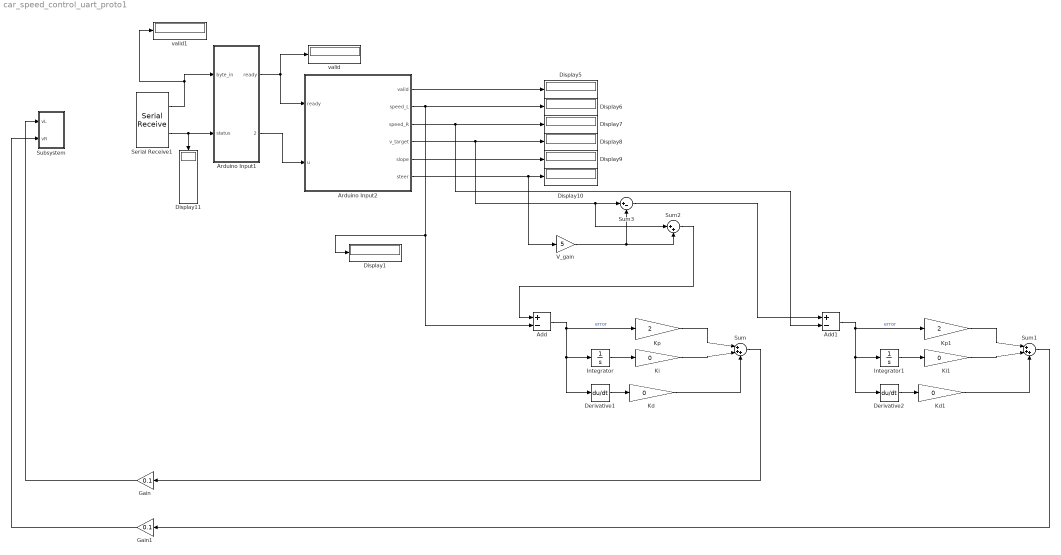
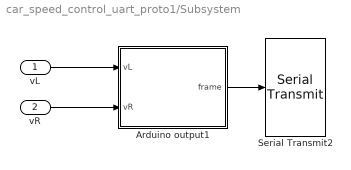
== matlab function car_speed_control_uart_proto1/Arduino Input2 ==
function [valid, speed_L, speed_R, v_target, slope, steer] = parseUART_persistent(ready, u)
% UART 패킷 파서 (persistent 방식으로 이전 값 유지)
% u: [10x1] uint8, 패킷 데이터
% ready: 패킷 유효 신호

%#codegen

% 이전 출력값 저장용 persistent 변수
persistent p_valid p_speed_L p_speed_R p_v_target p_slope p_steer

% 초기화 (최초 실행 시)
if isempty(p_valid)
    p_valid = false;
    p_speed_L = 0.0;
    p_speed_R = 0.0;
    p_v_target = 0.0;
    p_slope = uint8(0);
    p_steer = int8(0);
end

% 새로운 데이터가 들어왔을 경우만 업데이트
if ready == 1
        p_valid = true;
        p_speed_L = (double(u(2)) + double(u(3))/100) * 10;
        p_speed_R = (double(u(4)) + double(u(5))/100) * 10;
        p_v_target = double(u(6))*10;
        p_slope = u(7);
        p_steer = int8(u(8));
end

% 항상 마지막 유효 출력 반환
valid     = p_valid;
speed_L   = p_speed_L;
speed_R   = p_speed_R;
v_target  = p_v_target;
slope     = p_slope;
steer     = p_steer;

== matlab function car_speed_control_uart_proto1/Arduino Input1 ==
function [ready, data_out] = uart_parser(byte_in, status)
% UART 프레임 수신기 (Start Byte = 0xAA, Total = 10 bytes)
% 입력: byte_in - 1바이트씩 들어오는 uint8
% 입력: status - Serial Receive의 상태 (1이면 수신 성공)
% 출력: ready - 1이면 패킷 파싱 완료
% 출력: data_out - [1x10] uint8, 패킷 데이터

persistent buffer count collecting

if isempty(buffer)
    buffer = zeros(1, 10, 'uint8');
    count = 0;
    collecting = false;
end

ready = false;
data_out = zeros(1,10,'uint8');

if status == 1
    if ~collecting
        % 아직 수집 시작 전 → start byte 찾기
        if byte_in == hex2dec('AA')
            buffer(1) = byte_in;
            count = 1;
            collecting = true;
        end
    else
        % 수집 중
        count = count + 1;
        buffer(count) = byte_in;

        if count == 10
            data_out = buffer;
            ready = true;
            count = 0;
            collecting = false;
        end
    end
end

== matlab function car_speed_control_uart_proto1/Subsystem/Arduino output1 ==
function frame = makeFrame(vL, vR)
% 입력:
%   vL, vR : 좌/우 목표 속도 (실수, cm/s 단위)
% 출력:
%   frame : 7-byte UART 전송 프레임 (uint8 벡터)
    frame = zeros(5,1,'uint8');  % 7바이트 프레임

    % 2-3. 목표속도_L (정수 + 소수)
    frame(1) = uint8(floor(vL));                       % 정수부
    frame(2) = uint8(floor(mod(vL * 100, 100)));       % 소수부 (소수점 둘째 자리까지)

    % 4-5. 목표속도_R (정수 + 소수)
    frame(3) = uint8(floor(vR));                       % 정수부
    frame(4) = uint8(floor(mod(vR * 100, 100)));       % 소수부

    % 6. CRC: 256 - (sum of byte 1~5) % 256
    crc = mod(sum(double(frame(1:5))), 256);
    frame(5) = uint8(mod(256 - crc, 256));
    
end

/*
 * Academic License - for use in teaching, academic research, and meeting
 * course requirements at degree granting institutions only.  Not for
 * government, commercial, or other organizational use.
 *
 * File: car_speed_control_uart_proto1.c
 *
 * Code generated for Simulink model 'car_speed_control_uart_proto1'.
 *
 * Model version                  : 1.51
 * Simulink Coder version         : 24.2 (R2024b) 21-Jun-2024
 * C/C++ source code generated on : Fri May 23 17:59:32 2025
 *
 * Target selection: ert.tlc
 * Embedded hardware selection: Atmel->AVR
 * Code generation objectives: Unspecified
 * Validation result: Not run
 */

#include "car_speed_control_uart_proto1.h"
#include "rtwtypes.h"
#include <stddef.h>
#include <math.h>
#include "car_speed_control_uart_proto1_private.h"
#include "rt_nonfinite.h"

/* Block signals (default storage) */
B_car_speed_control_uart_prot_T car_speed_control_uart_proto1_B;

/* Continuous states */
X_car_speed_control_uart_prot_T car_speed_control_uart_proto1_X;

/* Disabled State Vector */
XDis_car_speed_control_uart_p_T car_speed_control_uart_pro_XDis;

/* Block states (default storage) */
DW_car_speed_control_uart_pro_T car_speed_control_uart_proto_DW;

/* Real-time model */
static RT_MODEL_car_speed_control_ua_T car_speed_control_uart_proto_M_;
RT_MODEL_car_speed_control_ua_T *const car_speed_control_uart_proto_M =
  &car_speed_control_uart_proto_M_;

/* Forward declaration for local functions */
static real_T car_speed_control_uart_prot_mod(real_T x);
static real_T car_speed_control_uart_pr_mod_p(real_T x);
static void rate_monotonic_scheduler(void);

/*
 * Set which subrates need to run this base step (base rate always runs).
 * This function must be called prior to calling the model step function
 * in order to remember which rates need to run this base step.  The
 * buffering of events allows for overlapping preemption.
 */
void car_speed_control_uart_proto1_SetEventsForThisBaseStep(boolean_T
  *eventFlags)
{
  /* Task runs when its counter is zero, computed via rtmStepTask macro */
  eventFlags[2] = ((boolean_T)rtmStepTask(car_speed_control_uart_proto_M, 2));
}

/*
 *         This function updates active task flag for each subrate
 *         and rate transition flags for tasks that exchange data.
 *         The function assumes rate-monotonic multitasking scheduler.
 *         The function must be called at model base rate so that
 *         the generated code self-manages all its subrates and rate
 *         transition flags.
 */
static void rate_monotonic_scheduler(void)
{
  /* To ensure a deterministic data transfer between two rates,
   * data is transferred at the priority of a fast task and the frequency
   * of the slow task.  The following flags indicate when the data transfer
   * happens.  That is, a rate interaction flag is set true when both rates
   * will run, and false otherwise.
   */

  /* tid 1 shares data with slower tid rate: 2 */
  if (car_speed_control_uart_proto_M->Timing.TaskCounters.TID[1] == 0) {
    car_speed_control_uart_proto_M->Timing.RateInteraction.TID1_2 =
      (car_speed_control_uart_proto_M->Timing.TaskCounters.TID[2] == 0);
  }

  /* Compute which subrates run during the next base time step.  Subrates
   * are an integer multiple of the base rate counter.  Therefore, the subtask
   * counter is reset when it reaches its limit (zero means run).
   */
  (car_speed_control_uart_proto_M->Timing.TaskCounters.TID[2])++;
  if ((car_speed_control_uart_proto_M->Timing.TaskCounters.TID[2]) > 9) {/* Sample time: [0.1s, 0.0s] */
    car_speed_control_uart_proto_M->Timing.TaskCounters.TID[2] = 0;
  }
}

/*
 * This function updates continuous states using the ODE3 fixed-step
 * solver algorithm
 */
static void rt_ertODEUpdateContinuousStates(RTWSolverInfo *si )
{
  /* Solver Matrices */
  static const real_T rt_ODE3_A[3] = {
    1.0/2.0, 3.0/4.0, 1.0
  };

  static const real_T rt_ODE3_B[3][3] = {
    { 1.0/2.0, 0.0, 0.0 },

    { 0.0, 3.0/4.0, 0.0 },

    { 2.0/9.0, 1.0/3.0, 4.0/9.0 }
  };

  time_T t = rtsiGetT(si);
  time_T tnew = rtsiGetSolverStopTime(si);
  time_T h = rtsiGetStepSize(si);
  real_T *x = rtsiGetContStates(si);
  ODE3_IntgData *id = (ODE3_IntgData *)rtsiGetSolverData(si);
  real_T *y = id->y;
  real_T *f0 = id->f[0];
  real_T *f1 = id->f[1];
  real_T *f2 = id->f[2];
  real_T hB[3];
  int_T i;
  int_T nXc = 2;
  rtsiSetSimTimeStep(si,MINOR_TIME_STEP);

  /* Save the state values at time t in y, we'll use x as ynew. */
  (void) memcpy(y, x,
                (uint_T)nXc*sizeof(real_T));

  /* Assumes that rtsiSetT and ModelOutputs are up-to-date */
  /* f0 = f(t,y) */
  rtsiSetdX(si, f0);
  car_speed_control_uart_proto1_derivatives();

  /* f(:,2) = feval(odefile, t + hA(1), y + f*hB(:,1), args(:)(*)); */
  hB[0] = h * rt_ODE3_B[0][0];
  for (i = 0; i < nXc; i++) {
    x[i] = y[i] + (f0[i]*hB[0]);
  }

  rtsiSetT(si, t + h*rt_ODE3_A[0]);
  rtsiSetdX(si, f1);
  car_speed_control_uart_proto1_step0();
  car_speed_control_uart_proto1_derivatives();

  /* f(:,3) = feval(odefile, t + hA(2), y + f*hB(:,2), args(:)(*)); */
  for (i = 0; i <= 1; i++) {
    hB[i] = h * rt_ODE3_B[1][i];
  }

  for (i = 0; i < nXc; i++) {
    x[i] = y[i] + (f0[i]*hB[0] + f1[i]*hB[1]);
  }

  rtsiSetT(si, t + h*rt_ODE3_A[1]);
  rtsiSetdX(si, f2);
  car_speed_control_uart_proto1_step0();
  car_speed_control_uart_proto1_derivatives();

  /* tnew = t + hA(3);
     ynew = y + f*hB(:,3); */
  for (i = 0; i <= 2; i++) {
    hB[i] = h * rt_ODE3_B[2][i];
  }

  for (i = 0; i < nXc; i++) {
    x[i] = y[i] + (f0[i]*hB[0] + f1[i]*hB[1] + f2[i]*hB[2]);
  }

  rtsiSetT(si, tnew);
  rtsiSetSimTimeStep(si,MAJOR_TIME_STEP);
}

/* Function for MATLAB Function: '<S3>/Arduino output1' */
static real_T car_speed_control_uart_prot_mod(real_T x)
{
  real_T r;
  if (rtIsNaN(x)) {
    r = (rtNaN);
  } else if (rtIsInf(x)) {
    r = (rtNaN);
  } else if (x == 0.0) {
    r = 0.0;
  } else {
    r = fmod(x, 100.0);
    if (r == 0.0) {
      r = 0.0;
    } else if (r < 0.0) {
      r += 100.0;
    }
  }

  return r;
}

/* Function for MATLAB Function: '<S3>/Arduino output1' */
static real_T car_speed_control_uart_pr_mod_p(real_T x)
{
  real_T r;
  if (rtIsNaN(x)) {
    r = (rtNaN);
  } else if (rtIsInf(x)) {
    r = (rtNaN);
  } else if (x == 0.0) {
    r = 0.0;
  } else {
    r = fmod(x, 256.0);
    if (r == 0.0) {
      r = 0.0;
    } else if (r < 0.0) {
      r += 256.0;
    }
  }

  return r;
}

real_T rt_roundd_snf(real_T u)
{
  real_T y;
  if (fabs(u) < 4.503599627370496E+15) {
    if (u >= 0.5) {
      y = floor(u + 0.5);
    } else if (u > -0.5) {
      y = u * 0.0;
    } else {
      y = ceil(u - 0.5);
    }
  } else {
    y = u;
  }

  return y;
}

/* Model step function for TID0 */
void car_speed_control_uart_proto1_step0(void) /* Sample time: [0.0s, 0.0s] */
{
  if (rtmIsMajorTimeStep(car_speed_control_uart_proto_M)) {
    /* set solver stop time */
    rtsiSetSolverStopTime(&car_speed_control_uart_proto_M->solverInfo,
                          ((car_speed_control_uart_proto_M->Timing.clockTick0+1)*
      car_speed_control_uart_proto_M->Timing.stepSize0));

    {                                  /* Sample time: [0.0s, 0.0s] */
      rate_monotonic_scheduler();
    }
  }                                    /* end MajorTimeStep */

  /* Update absolute time of base rate at minor time step */
  if (rtmIsMinorTimeStep(car_speed_control_uart_proto_M)) {
    car_speed_control_uart_proto_M->Timing.t[0] = rtsiGetT
      (&car_speed_control_uart_proto_M->solverInfo);
  }

  {
    real_T rtb_Integrator1;
    real_T tmp;
    real_T *lastU;
    int16_T i;
    uint8_T data_out[10];
    uint8_T tmp_1;
    boolean_T tmp_0;
    tmp_0 = rtmIsMajorTimeStep(car_speed_control_uart_proto_M);
    if (tmp_0) {
      /* MATLABSystem: '<Root>/Serial Receive1' */
      MW_Serial_read(1, 1U, &car_speed_control_uart_proto1_B.SerialReceive1_o1,
                     &car_speed_control_uart_proto1_B.SerialReceive1_o2, NULL,
                     0.0, NULL, 0.0);

      /* MATLAB Function: '<Root>/Arduino Input1' */
      car_speed_control_uart_proto1_B.ready = false;
      for (i = 0; i < 10; i++) {
        data_out[i] = 0U;
      }

      if (car_speed_control_uart_proto1_B.SerialReceive1_o2 == 1) {
        if (!car_speed_control_uart_proto_DW.collecting) {
          if (car_speed_control_uart_proto1_B.SerialReceive1_o1 == 170) {
            car_speed_control_uart_proto_DW.buffer[0] =
              car_speed_control_uart_proto1_B.SerialReceive1_o1;
            car_speed_control_uart_proto_DW.count = 1.0;
            car_speed_control_uart_proto_DW.collecting = true;
          }
        } else {
          car_speed_control_uart_proto_DW.count++;
          car_speed_control_uart_proto_DW.buffer[(int16_T)
            car_speed_control_uart_proto_DW.count - 1] =
            car_speed_control_uart_proto1_B.SerialReceive1_o1;
          if (car_speed_control_uart_proto_DW.count == 10.0) {
            for (i = 0; i < 10; i++) {
              data_out[i] = car_speed_control_uart_proto_DW.buffer[i];
            }

            car_speed_control_uart_proto1_B.ready = true;
            car_speed_control_uart_proto_DW.count = 0.0;
            car_speed_control_uart_proto_DW.collecting = false;
          }
        }
      }

      /* End of MATLAB Function: '<Root>/Arduino Input1' */

      /* MATLAB Function: '<Root>/Arduino Input2' */
      if (car_speed_control_uart_proto1_B.ready) {
        car_speed_control_uart_proto_DW.p_valid = true;
        car_speed_control_uart_proto_DW.p_speed_L = ((real_T)data_out[2] / 100.0
          + (real_T)data_out[1]) * 10.0;
        car_speed_control_uart_proto_DW.p_speed_R = ((real_T)data_out[4] / 100.0
          + (real_T)data_out[3]) * 10.0;
        car_speed_control_uart_proto_DW.p_v_target = (real_T)data_out[5] * 10.0;
        car_speed_control_uart_proto_DW.p_slope = data_out[6];
        tmp_1 = data_out[7];
        if (data_out[7] > 127) {
          tmp_1 = 127U;
        }

        car_speed_control_uart_proto_DW.p_steer = (int8_T)tmp_1;
      }

      car_speed_control_uart_proto1_B.valid =
        car_speed_control_uart_proto_DW.p_valid;
      car_speed_control_uart_proto1_B.speed_L =
        car_speed_control_uart_proto_DW.p_speed_L;
      car_speed_control_uart_proto1_B.speed_R =
        car_speed_control_uart_proto_DW.p_speed_R;
      car_speed_control_uart_proto1_B.v_target =
        car_speed_control_uart_proto_DW.p_v_target;
      car_speed_control_uart_proto1_B.slope =
        car_speed_control_uart_proto_DW.p_slope;
      car_speed_control_uart_proto1_B.steer =
        car_speed_control_uart_proto_DW.p_steer;

      /* End of MATLAB Function: '<Root>/Arduino Input2' */
      /* Gain: '<Root>/V_gain' */
      i = car_speed_control_uart_proto1_P.V_gain_Gain *
        car_speed_control_uart_proto1_B.steer;

      /* Sum: '<Root>/Add' incorporates:
       *  Gain: '<Root>/V_gain'
       *  Sum: '<Root>/Sum2'
       */
      car_speed_control_uart_proto1_B.error = ((real_T)i * 0.0625 +
        car_speed_control_uart_proto1_B.v_target) -
        car_speed_control_uart_proto1_B.speed_L;
    }

    /* Derivative: '<Root>/Derivative1' incorporates:
     *  Derivative: '<Root>/Derivative2'
     */
    tmp = car_speed_control_uart_proto_M->Timing.t[0];
    if ((car_speed_control_uart_proto_DW.TimeStampA >= tmp) &&
        (car_speed_control_uart_proto_DW.TimeStampB >= tmp)) {
      rtb_Integrator1 = 0.0;
    } else {
      rtb_Integrator1 = car_speed_control_uart_proto_DW.TimeStampA;
      lastU = &car_speed_control_uart_proto_DW.LastUAtTimeA;
      if (car_speed_control_uart_proto_DW.TimeStampA <
          car_speed_control_uart_proto_DW.TimeStampB) {
        if (car_speed_control_uart_proto_DW.TimeStampB < tmp) {
          rtb_Integrator1 = car_speed_control_uart_proto_DW.TimeStampB;
          lastU = &car_speed_control_uart_proto_DW.LastUAtTimeB;
        }
      } else if (car_speed_control_uart_proto_DW.TimeStampA >= tmp) {
        rtb_Integrator1 = car_speed_control_uart_proto_DW.TimeStampB;
        lastU = &car_speed_control_uart_proto_DW.LastUAtTimeB;
      }

      rtb_Integrator1 = (car_speed_control_uart_proto1_B.error - *lastU) / (tmp
        - rtb_Integrator1);
    }

    /* End of Derivative: '<Root>/Derivative1' */

    /* RateTransition generated from: '<Root>/Subsystem' incorporates:
     *  Gain: '<Root>/Gain'
     *  Gain: '<Root>/Kd'
     *  Gain: '<Root>/Ki'
     *  Gain: '<Root>/Kp'
     *  Integrator: '<Root>/Integrator'
     *  Sum: '<Root>/Sum'
     */
    if (tmp_0) {
      if (car_speed_control_uart_proto_M->Timing.RateInteraction.TID1_2) {
        car_speed_control_uart_proto_DW.TmpRTBAtSubsystemInport1_Buffer =
          ((car_speed_control_uart_proto1_P.Kp_Gain *
            car_speed_control_uart_proto1_B.error +
            car_speed_control_uart_proto1_P.Ki_Gain *
            car_speed_control_uart_proto1_X.Integrator_CSTATE) +
           car_speed_control_uart_proto1_P.Kd_Gain * rtb_Integrator1) *
          car_speed_control_uart_proto1_P.Gain_Gain;
      }

      /* Sum: '<Root>/Add1' incorporates:
       *  Gain: '<Root>/Gain'
       *  Gain: '<Root>/Kd'
       *  Gain: '<Root>/Ki'
       *  Gain: '<Root>/Kp'
       *  Gain: '<Root>/V_gain'
       *  Integrator: '<Root>/Integrator'
       *  Sum: '<Root>/Sum'
       *  Sum: '<Root>/Sum3'
       */
      car_speed_control_uart_proto1_B.error_j =
        (car_speed_control_uart_proto1_B.v_target - (real_T)i * 0.0625) -
        car_speed_control_uart_proto1_B.speed_R;
    }

    /* End of RateTransition generated from: '<Root>/Subsystem' */

    /* Derivative: '<Root>/Derivative2' */
    if ((car_speed_control_uart_proto_DW.TimeStampA_l >= tmp) &&
        (car_speed_control_uart_proto_DW.TimeStampB_i >= tmp)) {
      rtb_Integrator1 = 0.0;
    } else {
      rtb_Integrator1 = car_speed_control_uart_proto_DW.TimeStampA_l;
      lastU = &car_speed_control_uart_proto_DW.LastUAtTimeA_k;
      if (car_speed_control_uart_proto_DW.TimeStampA_l <
          car_speed_control_uart_proto_DW.TimeStampB_i) {
        if (car_speed_control_uart_proto_DW.TimeStampB_i < tmp) {
          rtb_Integrator1 = car_speed_control_uart_proto_DW.TimeStampB_i;
          lastU = &car_speed_control_uart_proto_DW.LastUAtTimeB_o;
        }
      } else if (car_speed_control_uart_proto_DW.TimeStampA_l >= tmp) {
        rtb_Integrator1 = car_speed_control_uart_proto_DW.TimeStampB_i;
        lastU = &car_speed_control_uart_proto_DW.LastUAtTimeB_o;
      }

      rtb_Integrator1 = (car_speed_control_uart_proto1_B.error_j - *lastU) /
        (tmp - rtb_Integrator1);
    }

    /* RateTransition generated from: '<Root>/Subsystem' incorporates:
     *  Gain: '<Root>/Gain1'
     *  Gain: '<Root>/Kd1'
     *  Gain: '<Root>/Ki1'
     *  Gain: '<Root>/Kp1'
     *  Integrator: '<Root>/Integrator1'
     *  Sum: '<Root>/Sum1'
     */
    if (tmp_0) {
      if (car_speed_control_uart_proto_M->Timing.RateInteraction.TID1_2) {
        car_speed_control_uart_proto_DW.TmpRTBAtSubsystemInport2_Buffer =
          ((car_speed_control_uart_proto1_P.Kp1_Gain *
            car_speed_control_uart_proto1_B.error_j +
            car_speed_control_uart_proto1_P.Ki1_Gain *
            car_speed_control_uart_proto1_X.Integrator1_CSTATE) +
           car_speed_control_uart_proto1_P.Kd1_Gain * rtb_Integrator1) *
          car_speed_control_uart_proto1_P.Gain1_Gain;
      }
    }

    /* End of RateTransition generated from: '<Root>/Subsystem' */
  }

  if (rtmIsMajorTimeStep(car_speed_control_uart_proto_M)) {
    real_T *lastU;

    /* Update for Derivative: '<Root>/Derivative1' */
    if (car_speed_control_uart_proto_DW.TimeStampA == (rtInf)) {
      car_speed_control_uart_proto_DW.TimeStampA =
        car_speed_control_uart_proto_M->Timing.t[0];
      lastU = &car_speed_control_uart_proto_DW.LastUAtTimeA;
    } else if (car_speed_control_uart_proto_DW.TimeStampB == (rtInf)) {
      car_speed_control_uart_proto_DW.TimeStampB =
        car_speed_control_uart_proto_M->Timing.t[0];
      lastU = &car_speed_control_uart_proto_DW.LastUAtTimeB;
    } else if (car_speed_control_uart_proto_DW.TimeStampA <
               car_speed_control_uart_proto_DW.TimeStampB) {
      car_speed_control_uart_proto_DW.TimeStampA =
        car_speed_control_uart_proto_M->Timing.t[0];
      lastU = &car_speed_control_uart_proto_DW.LastUAtTimeA;
    } else {
      car_speed_control_uart_proto_DW.TimeStampB =
        car_speed_control_uart_proto_M->Timing.t[0];
      lastU = &car_speed_control_uart_proto_DW.LastUAtTimeB;
    }

    *lastU = car_speed_control_uart_proto1_B.error;

    /* End of Update for Derivative: '<Root>/Derivative1' */

    /* Update for Derivative: '<Root>/Derivative2' */
    if (car_speed_control_uart_proto_DW.TimeStampA_l == (rtInf)) {
      car_speed_control_uart_proto_DW.TimeStampA_l =
        car_speed_control_uart_proto_M->Timing.t[0];
      lastU = &car_speed_control_uart_proto_DW.LastUAtTimeA_k;
    } else if (car_speed_control_uart_proto_DW.TimeStampB_i == (rtInf)) {
      car_speed_control_uart_proto_DW.TimeStampB_i =
        car_speed_control_uart_proto_M->Timing.t[0];
      lastU = &car_speed_control_uart_proto_DW.LastUAtTimeB_o;
    } else if (car_speed_control_uart_proto_DW.TimeStampA_l <
               car_speed_control_uart_proto_DW.TimeStampB_i) {
      car_speed_control_uart_proto_DW.TimeStampA_l =
        car_speed_control_uart_proto_M->Timing.t[0];
      lastU = &car_speed_control_uart_proto_DW.LastUAtTimeA_k;
    } else {
      car_speed_control_uart_proto_DW.TimeStampB_i =
        car_speed_control_uart_proto_M->Timing.t[0];
      lastU = &car_speed_control_uart_proto_DW.LastUAtTimeB_o;
    }

    *lastU = car_speed_control_uart_proto1_B.error_j;

    /* End of Update for Derivative: '<Root>/Derivative2' */
    {
      extmodeErrorCode_T returnCode = EXTMODE_SUCCESS;
      extmodeSimulationTime_T extmodeTime = (extmodeSimulationTime_T)
        ((car_speed_control_uart_proto_M->Timing.clockTick1 * 1) + 0);

      /* Trigger External Mode event */
      returnCode = extmodeEvent(1, extmodeTime);
      if (returnCode != EXTMODE_SUCCESS) {
        /* Code to handle External Mode event errors
           may be added here */
      }
    }
  }                                    /* end MajorTimeStep */

  if (rtmIsMajorTimeStep(car_speed_control_uart_proto_M)) {
    rt_ertODEUpdateContinuousStates(&car_speed_control_uart_proto_M->solverInfo);

    /* Update absolute time */
    /* The "clockTick0" counts the number of times the code of this task has
     * been executed. The absolute time is the multiplication of "clockTick0"
     * and "Timing.stepSize0". Size of "clockTick0" ensures timer will not
     * overflow during the application lifespan selected.
     */
    ++car_speed_control_uart_proto_M->Timing.clockTick0;
    car_speed_control_uart_proto_M->Timing.t[0] = rtsiGetSolverStopTime
      (&car_speed_control_uart_proto_M->solverInfo);

    /* Update absolute time */
    /* The "clockTick1" counts the number of times the code of this task has
     * been executed. The resolution of this integer timer is 0.01, which is the step size
     * of the task. Size of "clockTick1" ensures timer will not overflow during the
     * application lifespan selected.
     */
    car_speed_control_uart_proto_M->Timing.clockTick1++;
  }                                    /* end MajorTimeStep */
}

/* Derivatives for root system: '<Root>' */
void car_speed_control_uart_proto1_derivatives(void)
{
  XDot_car_speed_control_uart_p_T *_rtXdot;
  _rtXdot = ((XDot_car_speed_control_uart_p_T *)
             car_speed_control_uart_proto_M->derivs);

  /* Derivatives for Integrator: '<Root>/Integrator' */
  _rtXdot->Integrator_CSTATE = car_speed_control_uart_proto1_B.error;

  /* Derivatives for Integrator: '<Root>/Integrator1' */
  _rtXdot->Integrator1_CSTATE = car_speed_control_uart_proto1_B.error_j;
}

/* Model step function for TID2 */
void car_speed_control_uart_proto1_step2(void) /* Sample time: [0.1s, 0.0s] */
{
  real_T tmp;
  real_T tmp_0;
  real_T tmp_1;
  uint8_T frame[5];
  uint8_T varargin_10;
  uint8_T varargin_9;

  /* Outputs for Atomic SubSystem: '<Root>/Subsystem' */
  /* MATLAB Function: '<S3>/Arduino output1' incorporates:
   *  RateTransition generated from: '<Root>/Subsystem'
   * */
  tmp_1 = floor(car_speed_control_uart_proto_DW.TmpRTBAtSubsystemInport1_Buffer);
  if (tmp_1 < 256.0) {
    if (tmp_1 >= 0.0) {
      frame[0] = (uint8_T)tmp_1;
    } else {
      frame[0] = 0U;
    }
  } else {
    frame[0] = MAX_uint8_T;
  }

  tmp_0 = floor(car_speed_control_uart_prot_mod
                (car_speed_control_uart_proto_DW.TmpRTBAtSubsystemInport1_Buffer
                 * 100.0));
  if (tmp_0 < 256.0) {
    if (tmp_0 >= 0.0) {
      frame[1] = (uint8_T)tmp_0;
    } else {
      frame[1] = 0U;
    }
  } else {
    frame[1] = MAX_uint8_T;
  }

  tmp_0 = floor(car_speed_control_uart_proto_DW.TmpRTBAtSubsystemInport2_Buffer);
  if (tmp_0 < 256.0) {
    if (tmp_0 >= 0.0) {
      frame[2] = (uint8_T)tmp_0;
    } else {
      frame[2] = 0U;
    }
  } else {
    frame[2] = MAX_uint8_T;
  }

  tmp = floor(car_speed_control_uart_prot_mod
              (car_speed_control_uart_proto_DW.TmpRTBAtSubsystemInport2_Buffer *
               100.0));
  if (tmp < 256.0) {
    if (tmp >= 0.0) {
      frame[3] = (uint8_T)tmp;
    } else {
      frame[3] = 0U;
    }
  } else {
    frame[3] = MAX_uint8_T;
  }

  if (tmp_1 < 256.0) {
    if (tmp_1 >= 0.0) {
      varargin_9 = (uint8_T)tmp_1;
    } else {
      varargin_9 = 0U;
    }
  } else {
    varargin_9 = MAX_uint8_T;
  }

  if (tmp_0 < 256.0) {
    if (tmp_0 >= 0.0) {
      varargin_10 = (uint8_T)tmp_0;
    } else {
      varargin_10 = 0U;
    }
  } else {
    varargin_10 = MAX_uint8_T;
  }

  tmp_1 = rt_roundd_snf(car_speed_control_uart_pr_mod_p(256.0 -
    car_speed_control_uart_pr_mod_p((real_T)(((varargin_9 + frame[1]) +
    varargin_10) + frame[3]))));
  if (tmp_1 < 256.0) {
    if (tmp_1 >= 0.0) {
      frame[4] = (uint8_T)tmp_1;
    } else {
      frame[4] = 0U;
    }
  } else {
    frame[4] = MAX_uint8_T;
  }

  /* End of MATLAB Function: '<S3>/Arduino output1' */

  /* MATLABSystem: '<S3>/Serial Transmit2' */
  varargin_9 = 85U;
  varargin_10 = 170U;
  MW_Serial_write(car_speed_control_uart_proto_DW.obj.port, &frame[0], 5.0,
                  car_speed_control_uart_proto_DW.obj.dataSizeInBytes,
                  car_speed_control_uart_proto_DW.obj.sendModeEnum,
                  car_speed_control_uart_proto_DW.obj.dataType,
                  car_speed_control_uart_proto_DW.obj.sendFormatEnum, 2.0,
                  '\x00', &varargin_9, 1.0, &varargin_10, 1.0);

  /* End of Outputs for SubSystem: '<Root>/Subsystem' */

  /* Update absolute time */
  /* The "clockTick2" counts the number of times the code of this task has
   * been executed. The resolution of this integer timer is 0.1, which is the step size
   * of the task. Size of "clockTick2" ensures timer will not overflow during the
   * application lifespan selected.
   */
  car_speed_control_uart_proto_M->Timing.clockTick2++;
}
